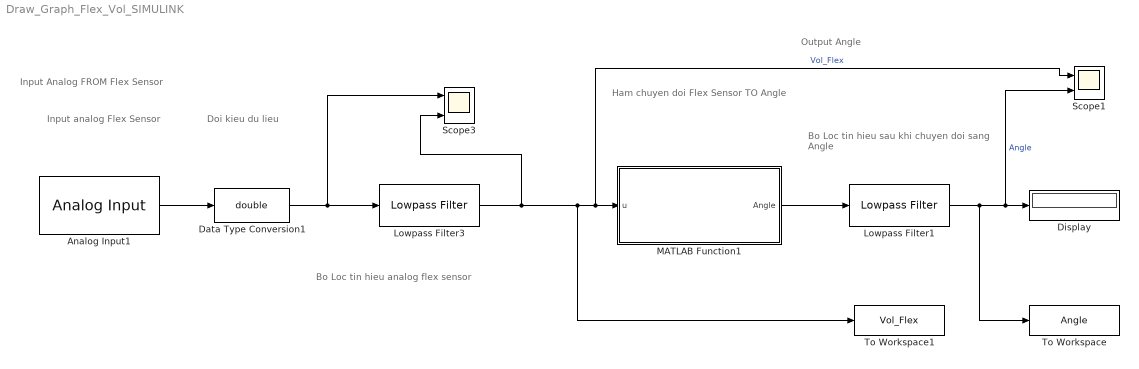
== matlab function Draw_Graph_Flex_Vol_SIMULINK/MATLAB Function1 ==
function Angle  = convert_flex_sensor(u)

VCC = 4.98;
R_DIV = 47500.0;
STRAIGHT_RESISTANCE = 24000.0;
BEND_RESISTANCE = 30000.0;


flexV = u * VCC / 1023.0;
flexR = R_DIV * (VCC / flexV - 1.0);

Angle = (((flexR - STRAIGHT_RESISTANCE)/(BEND_RESISTANCE - STRAIGHT_RESISTANCE))*90.0);

/*
 * File: Draw_Graph_Flex_Vol_SIMULINK.c
 *
 * Code generated for Simulink model 'Draw_Graph_Flex_Vol_SIMULINK'.
 *
 * Model version                  : 1.87
 * Simulink Coder version         : 9.9 (R2023a) 19-Nov-2022
 * C/C++ source code generated on : Fri Mar 29 15:35:51 2024
 *
 * Target selection: ert.tlc
 * Embedded hardware selection: Atmel->AVR
 * Code generation objectives: Unspecified
 * Validation result: Not run
 */

#include "Draw_Graph_Flex_Vol_SIMULINK.h"
#include "Draw_Graph_Flex_Vol_SIMULINK_types.h"
#include "rtwtypes.h"
#include "Draw_Graph_Flex_Vol_SIMULINK_private.h"

/* Block signals (default storage) */
B_Draw_Graph_Flex_Vol_SIMULIN_T Draw_Graph_Flex_Vol_SIMULINK_B;

/* Block states (default storage) */
DW_Draw_Graph_Flex_Vol_SIMULI_T Draw_Graph_Flex_Vol_SIMULINK_DW;

/* Real-time model */
static RT_MODEL_Draw_Graph_Flex_Vol__T Draw_Graph_Flex_Vol_SIMULINK_M_;
RT_MODEL_Draw_Graph_Flex_Vol__T *const Draw_Graph_Flex_Vol_SIMULINK_M =
  &Draw_Graph_Flex_Vol_SIMULINK_M_;

/* Model step function */
void Draw_Graph_Flex_Vol_SIMULINK_step(void)
{
  MW_AnalogIn_ResultDataType_Type datatype_id;
  b_dsp_FIRFilter_0_Draw_Graph__T *obj_1;
  b_dspcodegen_FIRFilter_Draw_G_T *obj_0;
  codertarget_arduinobase_inter_T *obj;
  real_T acc1;
  real_T zCurr;
  int16_T k;
  int16_T n;
  uint16_T b_varargout_1;

  /* MATLABSystem: '<Root>/Analog Input1' */
  if (Draw_Graph_Flex_Vol_SIMULINK_DW.obj_a.SampleTime !=
      Draw_Graph_Flex_Vol_SIMULINK_P.AnalogInput1_SampleTime) {
    Draw_Graph_Flex_Vol_SIMULINK_DW.obj_a.SampleTime =
      Draw_Graph_Flex_Vol_SIMULINK_P.AnalogInput1_SampleTime;
  }

  obj = &Draw_Graph_Flex_Vol_SIMULINK_DW.obj_a;
  obj->AnalogInDriverObj.MW_ANALOGIN_HANDLE = MW_AnalogIn_GetHandle(69UL);
  datatype_id = MW_ANALOGIN_UINT16;
  MW_AnalogInSingle_ReadResult
    (Draw_Graph_Flex_Vol_SIMULINK_DW.obj_a.AnalogInDriverObj.MW_ANALOGIN_HANDLE,
     &b_varargout_1, datatype_id);

  /* DataTypeConversion: '<Root>/Data Type Conversion1' incorporates:
   *  MATLABSystem: '<Root>/Analog Input1'
   */
  Draw_Graph_Flex_Vol_SIMULINK_B.DataTypeConversion1 = b_varargout_1;

  /* MATLABSystem: '<Root>/Lowpass Filter3' */
  obj_0 = Draw_Graph_Flex_Vol_SIMULINK_DW.obj.FilterObj;
  if (obj_0->isInitialized != 1L) {
    obj_0->isSetupComplete = false;
    obj_0->isInitialized = 1L;
    obj_0->isSetupComplete = true;

    /* System object Initialization function: dsp.FIRFilter */
    for (k = 0; k < 20; k++) {
      obj_0->cSFunObject.W0_states[k] = obj_0->cSFunObject.P0_InitialStates;
    }
  }

  obj_1 = &obj_0->cSFunObject;

  /* System object Outputs function: dsp.FIRFilter */
  Draw_Graph_Flex_Vol_SIMULINK_B.Vol_Flex =
    Draw_Graph_Flex_Vol_SIMULINK_B.DataTypeConversion1;
  for (k = 0; k < 1; k++) {
    acc1 = 0.0;

    /* load input sample */
    for (n = 0; n < 20; n++) {
      /* shift state */
      zCurr = Draw_Graph_Flex_Vol_SIMULINK_B.Vol_Flex;
      Draw_Graph_Flex_Vol_SIMULINK_B.Vol_Flex = obj_1->W0_states[(int32_T)n];
      obj_1->W0_states[(int32_T)n] = zCurr;

      /* compute one tap */
      zCurr *= obj_1->P1_Coefficients[(int32_T)n];
      acc1 += zCurr;
    }

    /* compute last tap */
    zCurr = obj_1->P1_Coefficients[(int32_T)n] *
      Draw_Graph_Flex_Vol_SIMULINK_B.Vol_Flex;

    /* store output sample */
    Draw_Graph_Flex_Vol_SIMULINK_B.Vol_Flex = acc1 + zCurr;
  }

  /* End of MATLABSystem: '<Root>/Lowpass Filter3' */

  /* MATLABSystem: '<Root>/Lowpass Filter1' incorporates:
   *  MATLAB Function: '<Root>/MATLAB Function1'
   */
  obj_0 = Draw_Graph_Flex_Vol_SIMULINK_DW.obj_m.FilterObj;
  if (obj_0->isInitialized != 1L) {
    obj_0->isSetupComplete = false;
    obj_0->isInitialized = 1L;
    obj_0->isSetupComplete = true;

    /* System object Initialization function: dsp.FIRFilter */
    for (k = 0; k < 20; k++) {
      obj_0->cSFunObject.W0_states[k] = obj_0->cSFunObject.P0_InitialStates;
    }
  }

  obj_1 = &obj_0->cSFunObject;

  /* System object Outputs function: dsp.FIRFilter */
  Draw_Graph_Flex_Vol_SIMULINK_B.Angle_l = ((4.98 /
    (Draw_Graph_Flex_Vol_SIMULINK_B.Vol_Flex * 4.98 / 1023.0) - 1.0) * 47500.0 -
    24000.0) / 6000.0 * 90.0;
  for (k = 0; k < 1; k++) {
    acc1 = 0.0;

    /* load input sample */
    for (n = 0; n < 20; n++) {
      /* shift state */
      zCurr = Draw_Graph_Flex_Vol_SIMULINK_B.Angle_l;
      Draw_Graph_Flex_Vol_SIMULINK_B.Angle_l = obj_1->W0_states[(int32_T)n];
      obj_1->W0_states[(int32_T)n] = zCurr;

      /* compute one tap */
      zCurr *= obj_1->P1_Coefficients[(int32_T)n];
      acc1 += zCurr;
    }

    /* compute last tap */
    zCurr = obj_1->P1_Coefficients[(int32_T)n] *
      Draw_Graph_Flex_Vol_SIMULINK_B.Angle_l;

    /* store output sample */
    Draw_Graph_Flex_Vol_SIMULINK_B.Angle_l = acc1 + zCurr;
  }

  /* End of MATLABSystem: '<Root>/Lowpass Filter1' */
  {                                    /* Sample time: [0.01s, 0.0s] */
  }

  /* Update absolute time for base rate */
  /* The "clockTick0" counts the number of times the code of this task has
   * been executed. The absolute time is the multiplication of "clockTick0"
   * and "Timing.stepSize0". Size of "clockTick0" ensures timer will not
   * overflow during the application lifespan selected.
   */
  Draw_Graph_Flex_Vol_SIMULINK_M->Timing.taskTime0 =
    ((time_T)(++Draw_Graph_Flex_Vol_SIMULINK_M->Timing.clockTick0)) *
    Draw_Graph_Flex_Vol_SIMULINK_M->Timing.stepSize0;
}
